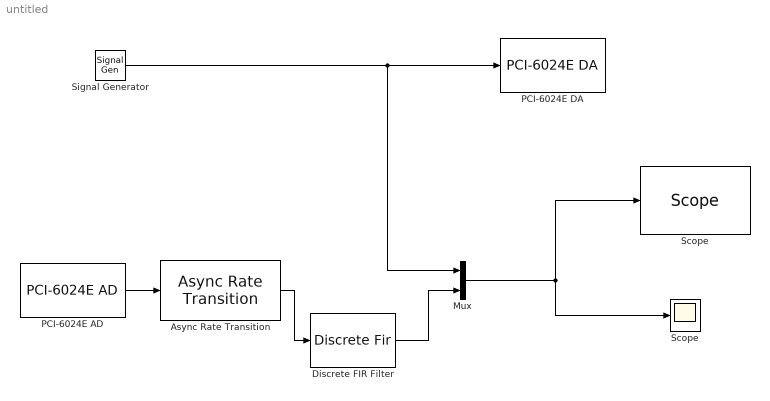
/*
 * untitled.c
 *
 * Code generation for model "untitled".
 *
 * Model version              : 1.4
 * Simulink Coder version : 8.6 (R2014a) 27-Dec-2013
 * C source code generated on : Sun Nov 26 18:06:45 2017
 *
 * Target selection: slrt.tlc
 * Note: GRT includes extra infrastructure and instrumentation for prototyping
 * Embedded hardware selection: Generic->32-bit x86 compatible
 * Code generation objectives: Unspecified
 * Validation result: Not run
 */
#include "rt_logging_mmi.h"
#include "untitled_capi.h"
#include "untitled.h"
#include "untitled_private.h"
#include "untitled_dt.h"

/* Block signals (auto storage) */
B_untitled_T untitled_B;

/* Block states (auto storage) */
DW_untitled_T untitled_DW;

/* Real-time model */
RT_MODEL_untitled_T untitled_M_;
RT_MODEL_untitled_T *const untitled_M = &untitled_M_;
static void rate_monotonic_scheduler(void);
time_T rt_SimUpdateDiscreteEvents(
  int_T rtmNumSampTimes, void *rtmTimingData, int_T *rtmSampleHitPtr, int_T
  *rtmPerTaskSampleHits )
{
  rtmSampleHitPtr[1] = rtmStepTask(untitled_M, 1);
  rtmSampleHitPtr[2] = rtmStepTask(untitled_M, 2);
  UNUSED_PARAMETER(rtmNumSampTimes);
  UNUSED_PARAMETER(rtmTimingData);
  UNUSED_PARAMETER(rtmPerTaskSampleHits);
  return(-1);
}

/*
 *   This function updates active task flag for each subrate
 * and rate transition flags for tasks that exchange data.
 * The function assumes rate-monotonic multitasking scheduler.
 * The function must be called at model base rate so that
 * the generated code self-manages all its subrates and rate
 * transition flags.
 */
static void rate_monotonic_scheduler(void)
{
  /* Compute which subrates run during the next base time step.  Subrates
   * are an integer multiple of the base rate counter.  Therefore, the subtask
   * counter is reset when it reaches its limit (zero means run).
   */
  (untitled_M->Timing.TaskCounters.TID[2])++;
  if ((untitled_M->Timing.TaskCounters.TID[2]) > 1) {/* Sample time: [0.006s, 0.0s] */
    untitled_M->Timing.TaskCounters.TID[2] = 0;
  }
}

/* Model output function for TID0 */
void untitled_output0(void)            /* Sample time: [0.0s, 0.0s] */
{
  real_T accumulator;
  real_T product;
  int32_T i;
  int32_T j;

  {                                    /* Sample time: [0.0s, 0.0s] */
    rate_monotonic_scheduler();
  }

  /* SignalGenerator: '<Root>/Signal Generator' */
  untitled_B.SignalGenerator = sin(untitled_P.SignalGenerator_Frequency *
    untitled_M->Timing.t[0]) * untitled_P.SignalGenerator_Amplitude;

  /* Level2 S-Function Block: '<Root>/PCI-6024E DA' (danipcie) */
  {
    SimStruct *rts = untitled_M->childSfunctions[0];
    sfcnOutputs(rts, 0);
  }

  /* RateTransition: '<S1>/Rate Transition' */
  untitled_B.RateTransition = untitled_B.PCI6024EAD;

  /* DiscreteFir: '<Root>/Discrete FIR Filter' */
  /* Consume delay line and beginning of input samples */
  for (i = 1; i - 1 < 1; i++) {
    accumulator = 0.0;
    for (j = 0; j < i; j++) {
      product = untitled_B.RateTransition *
        untitled_P.DiscreteFIRFilter_Coefficients[j];
      accumulator += product;
    }

    for (j = 0; j < 2 - i; j++) {
      product = untitled_P.DiscreteFIRFilter_Coefficients[i + j] *
        untitled_DW.DiscreteFIRFilter_states;
      accumulator += product;
    }

    untitled_B.DiscreteFIRFilter = accumulator;
  }

  /* Update delay line for next frame */
  i = 0;
  while (i < 1) {
    untitled_DW.DiscreteFIRFilter_states = untitled_B.RateTransition;
    i = 1;
  }

  /* End of DiscreteFir: '<Root>/Discrete FIR Filter' */

  /* ok to acquire for <S2>/S-Function */
  untitled_DW.SFunction_IWORK.AcquireOK = 1;
}

/* Model update function for TID0 */
void untitled_update0(void)            /* Sample time: [0.0s, 0.0s] */
{
  /* Update absolute time */
  /* The "clockTick0" counts the number of times the code of this task has
   * been executed. The absolute time is the multiplication of "clockTick0"
   * and "Timing.stepSize0". Size of "clockTick0" ensures timer will not
   * overflow during the application lifespan selected.
   * Timer of this task consists of two 32 bit unsigned integers.
   * The two integers represent the low bits Timing.clockTick0 and the high bits
   * Timing.clockTickH0. When the low bit overflows to 0, the high bits increment.
   */
  if (!(++untitled_M->Timing.clockTick0)) {
    ++untitled_M->Timing.clockTickH0;
  }

  untitled_M->Timing.t[0] = untitled_M->Timing.clockTick0 *
    untitled_M->Timing.stepSize0 + untitled_M->Timing.clockTickH0 *
    untitled_M->Timing.stepSize0 * 4294967296.0;

  /* Update absolute time */
  /* The "clockTick1" counts the number of times the code of this task has
   * been executed. The absolute time is the multiplication of "clockTick1"
   * and "Timing.stepSize1". Size of "clockTick1" ensures timer will not
   * overflow during the application lifespan selected.
   * Timer of this task consists of two 32 bit unsigned integers.
   * The two integers represent the low bits Timing.clockTick1 and the high bits
   * Timing.clockTickH1. When the low bit overflows to 0, the high bits increment.
   */
  if (!(++untitled_M->Timing.clockTick1)) {
    ++untitled_M->Timing.clockTickH1;
  }

  untitled_M->Timing.t[1] = untitled_M->Timing.clockTick1 *
    untitled_M->Timing.stepSize1 + untitled_M->Timing.clockTickH1 *
    untitled_M->Timing.stepSize1 * 4294967296.0;
}

/* Model output function for TID2 */
void untitled_output2(void)            /* Sample time: [0.006s, 0.0s] */
{
  /* Level2 S-Function Block: '<Root>/PCI-6024E AD' (adnipcie) */
  {
    SimStruct *rts = untitled_M->childSfunctions[1];
    sfcnOutputs(rts, 2);
  }
}

/* Model update function for TID2 */
void untitled_update2(void)            /* Sample time: [0.006s, 0.0s] */
{
  /* Update absolute time */
  /* The "clockTick2" counts the number of times the code of this task has
   * been executed. The absolute time is the multiplication of "clockTick2"
   * and "Timing.stepSize2". Size of "clockTick2" ensures timer will not
   * overflow during the application lifespan selected.
   * Timer of this task consists of two 32 bit unsigned integers.
   * The two integers represent the low bits Timing.clockTick2 and the high bits
   * Timing.clockTickH2. When the low bit overflows to 0, the high bits increment.
   */
  if (!(++untitled_M->Timing.clockTick2)) {
    ++untitled_M->Timing.clockTickH2;
  }

  untitled_M->Timing.t[2] = untitled_M->Timing.clockTick2 *
    untitled_M->Timing.stepSize2 + untitled_M->Timing.clockTickH2 *
    untitled_M->Timing.stepSize2 * 4294967296.0;
}

/* Model output wrapper function for compatibility with a static main program */
void untitled_output(int_T tid)
{
  switch (tid) {
   case 0 :
    untitled_output0();
    break;

   case 2 :
    untitled_output2();
    break;

   default :
    break;
  }
}

/* Model update wrapper function for compatibility with a static main program */
void untitled_update(int_T tid)
{
  switch (tid) {
   case 0 :
    untitled_update0();
    break;

   case 2 :
    untitled_update2();
    break;

   default :
    break;
  }
}
